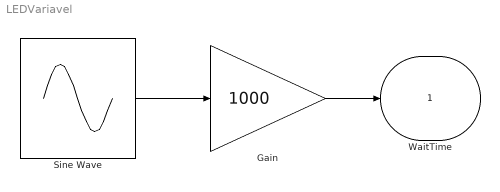
/*
 * Academic License - for use in teaching, academic research, and meeting
 * course requirements at degree granting institutions only.  Not for
 * government, commercial, or other organizational use.
 *
 * File: LEDVariavel.c
 *
 * Code generated for Simulink model 'LEDVariavel'.
 *
 * Model version                  : 1.1
 * Simulink Coder version         : 9.8 (R2022b) 13-May-2022
 * C/C++ source code generated on : Mon Dec  4 16:45:58 2023
 *
 * Target selection: ert.tlc
 * Embedded hardware selection: AMD->x86-64 (Windows64)
 * Code generation objectives:
 *    1. Execution efficiency
 *    2. RAM efficiency
 * Validation result: Not run
 */

#include "LEDVariavel.h"
#include <math.h>

/* Private macros used by the generated code to access rtModel */
#ifndef rtmIsMajorTimeStep
#define rtmIsMajorTimeStep(rtm)        (((rtm)->Timing.simTimeStep) == MAJOR_TIME_STEP)
#endif

#ifndef rtmIsMinorTimeStep
#define rtmIsMinorTimeStep(rtm)        (((rtm)->Timing.simTimeStep) == MINOR_TIME_STEP)
#endif

#ifndef rtmSetTPtr
#define rtmSetTPtr(rtm, val)           ((rtm)->Timing.t = (val))
#endif

/* External outputs (root outports fed by signals with default storage) */
ExtY rtY;

/* Real-time model */
static RT_MODEL rtM_;
RT_MODEL *const rtM = &rtM_;

/* Model step function */
void LEDVariavel_step(void)
{
  /* Outport: '<Root>/WaitTime' incorporates:
   *  Gain: '<Root>/Gain'
   *  Sin: '<Root>/Sine Wave'
   */
  rtY.WaitTime = (sin(rtM->Timing.t[0] + 0.1) * 0.2 + 0.25) * 1000.0;

  /* Update absolute time for base rate */
  /* The "clockTick0" counts the number of times the code of this task has
   * been executed. The absolute time is the multiplication of "clockTick0"
   * and "Timing.stepSize0". Size of "clockTick0" ensures timer will not
   * overflow during the application lifespan selected.
   */
  rtM->Timing.t[0] =
    ((time_T)(++rtM->Timing.clockTick0)) * rtM->Timing.stepSize0;
}
